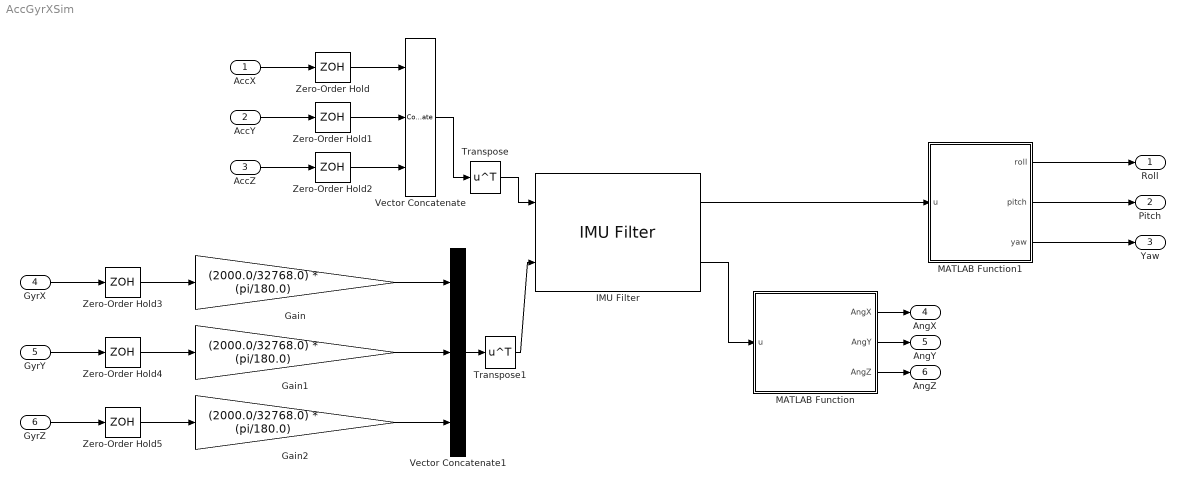
== matlab function AccGyrXSim/MATLAB Function ==
function [AngX,AngY,AngZ] = fcn(u)

y = u;
AngX = y(1);
AngY = y(2);
AngZ = y(3);

== matlab function AccGyrXSim/MATLAB Function1 ==
function [roll, pitch, yaw] = hquat2eul(u)

q2 = quaternion(u(:,1), u(:,2), u(:,3), u(:,4));
y = eulerd(q2, "ZYX", "frame");

yaw = y(3);
pitch = y(2);
roll = y(1)-45;

roll  = mod(roll  + 180, 360) - 180;
pitch = mod(pitch + 180, 360) - 180;
yaw   = mod(yaw   + 180, 360) - 180;

/*
 * File: AccGyrXSim.c
 *
 * Code generated for Simulink model 'AccGyrXSim'.
 *
 * Model version                  : 1.74
 * Simulink Coder version         : 25.2 (R2025b) 28-Jul-2025
 * C/C++ source code generated on : Mon Feb 23 16:50:48 2026
 *
 * Target selection: ert.tlc
 * Embedded hardware selection: ARM Compatible->ARM Cortex-M
 * Code generation objectives: Unspecified
 * Validation result: Not run
 */

#include "AccGyrXSim.h"
#include "AccGyrXSim_types.h"
#include "rtwtypes.h"
#include <math.h>
#include "AccGyrXSim_private.h"
#include "rt_nonfinite.h"
#include <string.h>
#include "rt_defines.h"

/* Block signals (default storage) */
B_AccGyrXSim_T AccGyrXSim_B;

/* Block states (default storage) */
DW_AccGyrXSim_T AccGyrXSim_DW;

/* External inputs (root inport signals with default storage) */
ExtU_AccGyrXSim_T AccGyrXSim_U;

/* External outputs (root outports fed by signals with default storage) */
ExtY_AccGyrXSim_T AccGyrXSim_Y;

/* Real-time model */
static RT_MODEL_AccGyrXSim_T AccGyrXSim_M_;
RT_MODEL_AccGyrXSim_T *const AccGyrXSim_M = &AccGyrXSim_M_;

/* Forward declaration for local functions */
static void AccGyrXSim_NED_ecompass(const real_T a[3], const real_T m[3], real_T
  R[9]);
static void AccGyrXSi_quaternion_quaternion(const real_T varargin_1[3], real_T
  *obj_a, real_T *obj_b, real_T *obj_c, real_T *obj_d);
static void AccGyrXSim_imufilter_stepImpl(fusion_internal_simulink_imuf_T *obj,
  const real_T accelIn[3], const real_T gyroIn[3], real_T orientOut[4], real_T
  angvel[3]);
static void AccGyrXSim_NED_ecompass(const real_T a[3], const real_T m[3], real_T
  R[9])
{
  real_T Reast[3];
  real_T R_0;
  int32_T i2;
  int32_T xpageoffset;
  boolean_T b[9];
  boolean_T y[3];
  boolean_T exitg1;
  boolean_T nanPageIdx;

  /* Start for MATLABSystem: '<Root>/IMU Filter' */
  Reast[0] = a[1] * m[2] - m[1] * a[2];
  Reast[1] = m[0] * a[2] - a[0] * m[2];
  Reast[2] = a[0] * m[1] - m[0] * a[1];
  R[6] = a[0];
  R[3] = Reast[0];

  /* Start for MATLABSystem: '<Root>/IMU Filter' */
  R[7] = a[1];
  R[4] = Reast[1];

  /* Start for MATLABSystem: '<Root>/IMU Filter' */
  R[8] = a[2];
  R[5] = Reast[2];

  /* Start for MATLABSystem: '<Root>/IMU Filter' */
  R[0] = Reast[1] * a[2] - a[1] * Reast[2];
  R[1] = a[0] * Reast[2] - Reast[0] * a[2];
  R[2] = Reast[0] * a[1] - a[0] * Reast[1];
  for (i2 = 0; i2 < 9; i2++) {
    R_0 = R[i2];
    AccGyrXSim_B.x[i2] = R_0 * R_0;
  }

  for (i2 = 0; i2 < 3; i2++) {
    xpageoffset = i2 * 3;

    /* Start for MATLABSystem: '<Root>/IMU Filter' */
    Reast[i2] = sqrt((AccGyrXSim_B.x[xpageoffset + 1] +
                      AccGyrXSim_B.x[xpageoffset]) + AccGyrXSim_B.x[xpageoffset
                     + 2]);
  }

  memcpy(&AccGyrXSim_B.x[0], &R[0], 9U * sizeof(real_T));
  for (i2 = 0; i2 < 3; i2++) {
    /* Start for MATLABSystem: '<Root>/IMU Filter' */
    R_0 = Reast[i2];
    R[3 * i2] = AccGyrXSim_B.x[3 * i2] / R_0;
    xpageoffset = 3 * i2 + 1;
    R[xpageoffset] = AccGyrXSim_B.x[xpageoffset] / R_0;
    xpageoffset = 3 * i2 + 2;
    R[xpageoffset] = AccGyrXSim_B.x[xpageoffset] / R_0;
  }

  for (i2 = 0; i2 < 9; i2++) {
    /* Start for MATLABSystem: '<Root>/IMU Filter' */
    b[i2] = rtIsNaN(R[i2]);
  }

  y[0] = false;
  y[1] = false;
  y[2] = false;
  i2 = 1;
  for (xpageoffset = 0; xpageoffset < 3; xpageoffset++) {
    int32_T i2_0;
    int32_T ix;

    /* Start for MATLABSystem: '<Root>/IMU Filter' */
    i2_0 = i2;
    ix = i2;

    /* Start for MATLABSystem: '<Root>/IMU Filter' */
    i2 += 3;
    exitg1 = false;
    while ((!exitg1) && (ix <= i2_0 + 2)) {
      if (b[ix - 1]) {
        y[xpageoffset] = true;
        exitg1 = true;
      } else {
        ix++;
      }
    }
  }

  nanPageIdx = false;
  i2 = 0;
  exitg1 = false;
  while ((!exitg1) && (i2 < 3)) {
    if (y[i2]) {
      nanPageIdx = true;
      exitg1 = true;
    } else {
      i2++;
    }
  }

  if (nanPageIdx) {
    memset(&R[0], 0, 9U * sizeof(real_T));
    R[0] = 1.0;
    R[4] = 1.0;
    R[8] = 1.0;
  }
}

static void AccGyrXSi_quaternion_quaternion(const real_T varargin_1[3], real_T
  *obj_a, real_T *obj_b, real_T *obj_c, real_T *obj_d)
{
  real_T st;
  real_T st_tmp;
  real_T theta;
  *obj_a = 1.0;
  *obj_b = 0.0;
  *obj_c = 0.0;
  *obj_d = 0.0;

  /* Start for MATLABSystem: '<Root>/IMU Filter' */
  theta = sqrt((varargin_1[0] * varargin_1[0] + varargin_1[1] * varargin_1[1]) +
               varargin_1[2] * varargin_1[2]);
  st_tmp = theta / 2.0;
  st = sin(st_tmp);
  if (theta != 0.0) {
    /* Start for MATLABSystem: '<Root>/IMU Filter' */
    *obj_a = cos(st_tmp);
    *obj_b = varargin_1[0] / theta * st;
    *obj_c = varargin_1[1] / theta * st;
    *obj_d = varargin_1[2] / theta * st;
  }
}

static void AccGyrXSim_imufilter_stepImpl(fusion_internal_simulink_imuf_T *obj,
  const real_T accelIn[3], const real_T gyroIn[3], real_T orientOut[4], real_T
  angvel[3])
{
  real_T psquared[4];
  real_T deltaAng[3];
  real_T a21;
  real_T deltaAng_idx_1;
  real_T deltaAng_idx_2;
  real_T e_c;
  real_T e_d;
  real_T invpa;
  real_T invpd;
  real_T maxval;
  real_T n;
  real_T pGyroOffsetIn_idx_0;
  real_T pGyroOffsetIn_idx_1;
  real_T pGyroOffsetIn_idx_2;
  real_T pa;
  real_T pd;
  real_T q_a;
  real_T y;
  real_T y_0;
  int32_T H_tmp;
  int32_T H_tmp_0;
  int32_T H_tmp_1;
  int32_T r1;
  int32_T r2;
  int32_T r3;
  int32_T rtemp;
  static const real_T tmp[3] = { 1.0, 0.0, 0.0 };

  static const int8_T tmp_0[9] = { 1, 0, 0, 0, 1, 0, 0, 0, 1 };

  boolean_T exitg1;

  /* Start for MATLABSystem: '<Root>/IMU Filter' */
  pGyroOffsetIn_idx_0 = obj->pGyroOffset[0];
  pGyroOffsetIn_idx_1 = obj->pGyroOffset[1];
  pGyroOffsetIn_idx_2 = obj->pGyroOffset[2];
  if (obj->pFirstTime) {
    AccGyrXSim_NED_ecompass(accelIn, tmp, AccGyrXSim_B.Rpost);
    pd = (AccGyrXSim_B.Rpost[0] + AccGyrXSim_B.Rpost[4]) + AccGyrXSim_B.Rpost[8];
    psquared[0] = (pd * 2.0 + 1.0) - pd;
    psquared[1] = (2.0 * AccGyrXSim_B.Rpost[0] + 1.0) - pd;
    psquared[2] = (2.0 * AccGyrXSim_B.Rpost[4] + 1.0) - pd;
    psquared[3] = (2.0 * AccGyrXSim_B.Rpost[8] + 1.0) - pd;
    if (!rtIsNaN(psquared[0])) {
      r2 = 1;
    } else {
      r2 = 0;
      r1 = 2;
      exitg1 = false;
      while ((!exitg1) && (r1 < 5)) {
        if (!rtIsNaN(psquared[r1 - 1])) {
          r2 = r1;
          exitg1 = true;
        } else {
          r1++;
        }
      }
    }

    if (r2 == 0) {
      pd = psquared[0];
      r2 = 1;
    } else {
      pd = psquared[r2 - 1];
      r3 = r2;
      for (r1 = r2 + 1; r1 < 5; r1++) {
        pa = psquared[r1 - 1];
        if (pd < pa) {
          pd = pa;
          r3 = r1;
        }
      }

      r2 = r3;
    }

    switch (r2) {
     case 1:
      pa = sqrt(pd);
      pd = 0.5 * pa;
      invpa = 0.5 / pa;
      pa = (AccGyrXSim_B.Rpost[7] - AccGyrXSim_B.Rpost[5]) * invpa;
      invpd = (AccGyrXSim_B.Rpost[2] - AccGyrXSim_B.Rpost[6]) * invpa;
      invpa *= AccGyrXSim_B.Rpost[3] - AccGyrXSim_B.Rpost[1];
      break;

     case 2:
      pd = sqrt(pd);
      pa = 0.5 * pd;
      invpa = 0.5 / pd;
      pd = (AccGyrXSim_B.Rpost[7] - AccGyrXSim_B.Rpost[5]) * invpa;
      invpd = (AccGyrXSim_B.Rpost[1] + AccGyrXSim_B.Rpost[3]) * invpa;
      invpa *= AccGyrXSim_B.Rpost[2] + AccGyrXSim_B.Rpost[6];
      break;

     case 3:
      pd = sqrt(pd);
      invpd = 0.5 * pd;
      invpa = 0.5 / pd;
      pd = (AccGyrXSim_B.Rpost[2] - AccGyrXSim_B.Rpost[6]) * invpa;
      pa = (AccGyrXSim_B.Rpost[1] + AccGyrXSim_B.Rpost[3]) * invpa;
      invpa *= AccGyrXSim_B.Rpost[5] + AccGyrXSim_B.Rpost[7];
      break;

     default:
      pd = sqrt(pd);
      invpa = 0.5 * pd;
      invpd = 0.5 / pd;
      pd = (AccGyrXSim_B.Rpost[3] - AccGyrXSim_B.Rpost[1]) * invpd;
      pa = (AccGyrXSim_B.Rpost[2] + AccGyrXSim_B.Rpost[6]) * invpd;
      invpd *= AccGyrXSim_B.Rpost[5] + AccGyrXSim_B.Rpost[7];
      break;
    }

    if (pd < 0.0) {
      pd = -pd;
      pa = -pa;
      invpd = -invpd;
      invpa = -invpa;
    }

    obj->pOrientPost.a = pd;
    obj->pOrientPost.b = pa;
    obj->pOrientPost.c = invpd;
    obj->pOrientPost.d = invpa;
  }

  deltaAng[0] = (gyroIn[0] - obj->pGyroOffset[0]) * obj->pSensorPeriod;
  deltaAng[1] = (gyroIn[1] - obj->pGyroOffset[1]) * obj->pSensorPeriod;
  deltaAng[2] = (gyroIn[2] - obj->pGyroOffset[2]) * obj->pSensorPeriod;
  AccGyrXSi_quaternion_quaternion(deltaAng, &n, &deltaAng_idx_1, &deltaAng_idx_2,
    &a21);

  /* Start for MATLABSystem: '<Root>/IMU Filter' */
  invpd = ((obj->pOrientPost.a * n - obj->pOrientPost.b * deltaAng_idx_1) -
           obj->pOrientPost.c * deltaAng_idx_2) - obj->pOrientPost.d * a21;
  invpa = ((obj->pOrientPost.a * deltaAng_idx_1 + obj->pOrientPost.b * n) +
           obj->pOrientPost.c * a21) - obj->pOrientPost.d * deltaAng_idx_2;
  e_c = ((obj->pOrientPost.a * deltaAng_idx_2 - obj->pOrientPost.b * a21) +
         obj->pOrientPost.c * n) + obj->pOrientPost.d * deltaAng_idx_1;
  e_d = ((obj->pOrientPost.a * a21 + obj->pOrientPost.b * deltaAng_idx_2) -
         obj->pOrientPost.c * deltaAng_idx_1) + obj->pOrientPost.d * n;
  if (((obj->pOrientPost.a * n - obj->pOrientPost.b * deltaAng_idx_1) -
       obj->pOrientPost.c * deltaAng_idx_2) - obj->pOrientPost.d * a21 < 0.0) {
    invpd = -invpd;
    invpa = -invpa;
    e_c = -e_c;
    e_d = -e_d;
  }

  n = sqrt(((invpd * invpd + invpa * invpa) + e_c * e_c) + e_d * e_d);
  q_a = invpd / n;
  pa = invpa / n;
  deltaAng_idx_1 = e_c / n;
  maxval = e_d / n;
  n = (pa * maxval * 2.0 - q_a * deltaAng_idx_1 * 2.0) * 9.81;
  pd = obj->LinearAccelerationDecayFactor * obj->pLinAccelPost[0];
  deltaAng_idx_1 = (deltaAng_idx_1 * maxval * 2.0 + q_a * pa * 2.0) * 9.81;
  pa = obj->LinearAccelerationDecayFactor * obj->pLinAccelPost[1];
  deltaAng_idx_2 = ((q_a * q_a * 2.0 - 1.0) + maxval * maxval * 2.0) * 9.81;
  q_a = obj->LinearAccelerationDecayFactor * obj->pLinAccelPost[2];
  memset(&AccGyrXSim_B.Rpost[0], 0, 9U * sizeof(real_T));

  /* Start for MATLABSystem: '<Root>/IMU Filter' */
  AccGyrXSim_B.Rpost[3] = deltaAng_idx_2;
  AccGyrXSim_B.Rpost[6] = -deltaAng_idx_1;
  AccGyrXSim_B.Rpost[7] = n;
  for (r1 = 0; r1 < 3; r1++) {
    AccGyrXSim_B.Rpost_c[3 * r1] = AccGyrXSim_B.Rpost[3 * r1];
    r2 = 3 * r1 + 1;
    AccGyrXSim_B.Rpost_c[r2] = AccGyrXSim_B.Rpost[r2] - AccGyrXSim_B.Rpost[r1 +
      3];
    r2 = 3 * r1 + 2;
    AccGyrXSim_B.Rpost_c[r2] = AccGyrXSim_B.Rpost[r2] - AccGyrXSim_B.Rpost[r1 +
      6];
  }

  for (r1 = 0; r1 < 9; r1++) {
    maxval = AccGyrXSim_B.Rpost_c[r1];
    AccGyrXSim_B.H[r1] = maxval;

    /* Start for MATLABSystem: '<Root>/IMU Filter' */
    AccGyrXSim_B.H[r1 + 9] = -maxval * obj->pKalmanPeriod;
    AccGyrXSim_B.H[r1 + 18] = tmp_0[r1];
    AccGyrXSim_B.y[3 * r1] = 0.0;
    AccGyrXSim_B.y[3 * r1 + 1] = 0.0;
    AccGyrXSim_B.y[3 * r1 + 2] = 0.0;
  }

  for (r1 = 0; r1 < 9; r1++) {
    a21 = AccGyrXSim_B.y[3 * r1];
    r3 = 3 * r1 + 1;
    y = AccGyrXSim_B.y[r3];
    rtemp = 3 * r1 + 2;
    y_0 = AccGyrXSim_B.y[rtemp];
    for (r2 = 0; r2 < 9; r2++) {
      /* Start for MATLABSystem: '<Root>/IMU Filter' */
      maxval = obj->pQw[9 * r1 + r2];
      a21 += AccGyrXSim_B.H[3 * r2] * maxval;
      y += AccGyrXSim_B.H[3 * r2 + 1] * maxval;
      y_0 += AccGyrXSim_B.H[3 * r2 + 2] * maxval;
    }

    AccGyrXSim_B.y[rtemp] = y_0;
    AccGyrXSim_B.y[r3] = y;
    AccGyrXSim_B.y[3 * r1] = a21;
  }

  /* Start for MATLABSystem: '<Root>/IMU Filter' */
  for (r1 = 0; r1 < 3; r1++) {
    maxval = 0.0;
    a21 = 0.0;
    y = 0.0;
    for (r2 = 0; r2 < 9; r2++) {
      y_0 = AccGyrXSim_B.H[3 * r2 + r1];
      AccGyrXSim_B.y_tmp[r2 + 9 * r1] = y_0;
      maxval += AccGyrXSim_B.y[3 * r2] * y_0;
      a21 += AccGyrXSim_B.y[3 * r2 + 1] * y_0;
      y += AccGyrXSim_B.y[3 * r2 + 2] * y_0;
    }

    AccGyrXSim_B.Rpost_c[3 * r1 + 2] = y;
    AccGyrXSim_B.Rpost_c[3 * r1 + 1] = a21;
    AccGyrXSim_B.Rpost_c[3 * r1] = maxval;
  }

  for (r1 = 0; r1 < 3; r1++) {
    /* Start for MATLABSystem: '<Root>/IMU Filter' */
    AccGyrXSim_B.Rpost[3 * r1] = AccGyrXSim_B.Rpost_c[r1] + obj->pQv[r1];
    AccGyrXSim_B.Rpost[3 * r1 + 1] = AccGyrXSim_B.Rpost_c[r1 + 3] + obj->pQv[r1
      + 3];
    AccGyrXSim_B.Rpost[3 * r1 + 2] = AccGyrXSim_B.Rpost_c[r1 + 6] + obj->pQv[r1
      + 6];
    memset(&AccGyrXSim_B.y_m[r1 * 9], 0, 9U * sizeof(real_T));
    for (r2 = 0; r2 < 9; r2++) {
      maxval = AccGyrXSim_B.y_tmp[9 * r1 + r2];
      for (rtemp = 0; rtemp < 9; rtemp++) {
        r3 = 9 * r1 + rtemp;

        /* Start for MATLABSystem: '<Root>/IMU Filter' */
        AccGyrXSim_B.y_m[r3] += obj->pQw[9 * r2 + rtemp] * maxval;
      }
    }
  }

  r1 = 0;

  /* Start for MATLABSystem: '<Root>/IMU Filter' */
  r2 = 1;
  r3 = 2;
  maxval = fabs(AccGyrXSim_B.Rpost[0]);
  a21 = fabs(AccGyrXSim_B.Rpost[1]);
  if (a21 > maxval) {
    maxval = a21;
    r1 = 1;

    /* Start for MATLABSystem: '<Root>/IMU Filter' */
    r2 = 0;
  }

  /* Start for MATLABSystem: '<Root>/IMU Filter' */
  if (fabs(AccGyrXSim_B.Rpost[2]) > maxval) {
    r1 = 2;
    r2 = 1;
    r3 = 0;
  }

  AccGyrXSim_B.Rpost[r2] /= AccGyrXSim_B.Rpost[r1];
  AccGyrXSim_B.Rpost[r3] /= AccGyrXSim_B.Rpost[r1];
  AccGyrXSim_B.Rpost[r2 + 3] -= AccGyrXSim_B.Rpost[r1 + 3] *
    AccGyrXSim_B.Rpost[r2];
  AccGyrXSim_B.Rpost[r3 + 3] -= AccGyrXSim_B.Rpost[r1 + 3] *
    AccGyrXSim_B.Rpost[r3];
  AccGyrXSim_B.Rpost[r2 + 6] -= AccGyrXSim_B.Rpost[r1 + 6] *
    AccGyrXSim_B.Rpost[r2];
  AccGyrXSim_B.Rpost[r3 + 6] -= AccGyrXSim_B.Rpost[r1 + 6] *
    AccGyrXSim_B.Rpost[r3];

  /* Start for MATLABSystem: '<Root>/IMU Filter' */
  if (fabs(AccGyrXSim_B.Rpost[r3 + 3]) > fabs(AccGyrXSim_B.Rpost[r2 + 3])) {
    rtemp = r2 + 1;
    r2 = r3;
    r3 = rtemp - 1;
  }

  AccGyrXSim_B.Rpost[r3 + 3] /= AccGyrXSim_B.Rpost[r2 + 3];
  AccGyrXSim_B.Rpost[r3 + 6] -= AccGyrXSim_B.Rpost[r3 + 3] *
    AccGyrXSim_B.Rpost[r2 + 6];
  for (rtemp = 0; rtemp < 9; rtemp++) {
    /* Start for MATLABSystem: '<Root>/IMU Filter' */
    H_tmp = 9 * r1 + rtemp;
    AccGyrXSim_B.H[H_tmp] = AccGyrXSim_B.y_m[rtemp] / AccGyrXSim_B.Rpost[r1];
    H_tmp_0 = 9 * r2 + rtemp;
    AccGyrXSim_B.H[H_tmp_0] = AccGyrXSim_B.y_m[rtemp + 9] -
      AccGyrXSim_B.Rpost[r1 + 3] * AccGyrXSim_B.H[H_tmp];
    H_tmp_1 = 9 * r3 + rtemp;
    AccGyrXSim_B.H[H_tmp_1] = AccGyrXSim_B.y_m[rtemp + 18] -
      AccGyrXSim_B.Rpost[r1 + 6] * AccGyrXSim_B.H[H_tmp];
    AccGyrXSim_B.H[H_tmp_0] /= AccGyrXSim_B.Rpost[r2 + 3];
    AccGyrXSim_B.H[H_tmp_1] -= AccGyrXSim_B.Rpost[r2 + 6] *
      AccGyrXSim_B.H[H_tmp_0];
    AccGyrXSim_B.H[H_tmp_1] /= AccGyrXSim_B.Rpost[r3 + 6];
    AccGyrXSim_B.H[H_tmp_0] -= AccGyrXSim_B.Rpost[r3 + 3] *
      AccGyrXSim_B.H[H_tmp_1];
    AccGyrXSim_B.H[H_tmp] -= AccGyrXSim_B.H[H_tmp_1] * AccGyrXSim_B.Rpost[r3];
    AccGyrXSim_B.H[H_tmp] -= AccGyrXSim_B.H[H_tmp_0] * AccGyrXSim_B.Rpost[r2];
  }

  /* Start for MATLABSystem: '<Root>/IMU Filter' */
  deltaAng[0] = (accelIn[0] + pd) - n;
  deltaAng[1] = (accelIn[1] + pa) - deltaAng_idx_1;
  deltaAng[2] = (accelIn[2] + q_a) - deltaAng_idx_2;
  memset(&AccGyrXSim_B.Rpost[0], 0, 9U * sizeof(real_T));
  for (r1 = 0; r1 < 3; r1++) {
    maxval = deltaAng[r1];
    for (r2 = 0; r2 < 9; r2++) {
      /* Start for MATLABSystem: '<Root>/IMU Filter' */
      AccGyrXSim_B.Rpost[r2] += AccGyrXSim_B.H[9 * r1 + r2] * maxval;
    }
  }

  /* Start for MATLABSystem: '<Root>/IMU Filter' */
  AccGyrXSi_quaternion_quaternion(&AccGyrXSim_B.Rpost[0], &n, &deltaAng_idx_1,
    &deltaAng_idx_2, &a21);
  maxval = ((invpd * n - invpa * -deltaAng_idx_1) - e_c * -deltaAng_idx_2) - e_d
    * -a21;
  obj->pOrientPost.a = maxval;
  obj->pOrientPost.b = ((invpd * -deltaAng_idx_1 + invpa * n) + e_c * -a21) -
    e_d * -deltaAng_idx_2;
  obj->pOrientPost.c = ((invpd * -deltaAng_idx_2 - invpa * -a21) + e_c * n) +
    e_d * -deltaAng_idx_1;
  obj->pOrientPost.d = ((invpd * -a21 + invpa * -deltaAng_idx_2) - e_c *
                        -deltaAng_idx_1) + e_d * n;
  if (maxval < 0.0) {
    obj->pOrientPost.a = -obj->pOrientPost.a;
    obj->pOrientPost.b = -obj->pOrientPost.b;
    obj->pOrientPost.c = -obj->pOrientPost.c;
    obj->pOrientPost.d = -obj->pOrientPost.d;
  }

  /* Start for MATLABSystem: '<Root>/IMU Filter' */
  n = sqrt(((obj->pOrientPost.a * obj->pOrientPost.a + obj->pOrientPost.b *
             obj->pOrientPost.b) + obj->pOrientPost.c * obj->pOrientPost.c) +
           obj->pOrientPost.d * obj->pOrientPost.d);
  obj->pOrientPost.a /= n;
  obj->pOrientPost.b /= n;
  obj->pOrientPost.c /= n;
  obj->pOrientPost.d /= n;
  for (r1 = 0; r1 < 9; r1++) {
    /* Start for MATLABSystem: '<Root>/IMU Filter' */
    invpd = AccGyrXSim_B.H[r1 + 9];
    invpa = AccGyrXSim_B.H[r1];
    e_c = AccGyrXSim_B.H[r1 + 18];
    for (r2 = 0; r2 < 9; r2++) {
      /* Start for MATLABSystem: '<Root>/IMU Filter' */
      r3 = 9 * r2 + r1;
      AccGyrXSim_B.Ppost[r3] = obj->pQw[r3] - ((AccGyrXSim_B.y[3 * r2 + 1] *
        invpd + AccGyrXSim_B.y[3 * r2] * invpa) + AccGyrXSim_B.y[3 * r2 + 2] *
        e_c);
    }
  }

  memset(&obj->pQw[0], 0, 81U * sizeof(real_T));

  /* Start for MATLABSystem: '<Root>/IMU Filter' */
  a21 = obj->pKalmanPeriod * obj->pKalmanPeriod;
  invpd = obj->GyroscopeDriftNoise + obj->GyroscopeNoise;
  obj->pQw[0] = (AccGyrXSim_B.Ppost[30] + invpd) * a21 + AccGyrXSim_B.Ppost[0];
  obj->pQw[30] = AccGyrXSim_B.Ppost[30] + obj->GyroscopeDriftNoise;
  obj->pQw[10] = (AccGyrXSim_B.Ppost[40] + invpd) * a21 + AccGyrXSim_B.Ppost[10];
  obj->pQw[40] = AccGyrXSim_B.Ppost[40] + obj->GyroscopeDriftNoise;
  obj->pQw[20] = (AccGyrXSim_B.Ppost[50] + invpd) * a21 + AccGyrXSim_B.Ppost[20];
  obj->pQw[50] = AccGyrXSim_B.Ppost[50] + obj->GyroscopeDriftNoise;
  n = -obj->pKalmanPeriod * obj->pQw[30];
  deltaAng_idx_1 = -obj->pKalmanPeriod * obj->pQw[40];
  deltaAng_idx_2 = -obj->pKalmanPeriod * obj->pQw[50];
  a21 = obj->LinearAccelerationDecayFactor * obj->LinearAccelerationDecayFactor;
  obj->pFirstTime = false;
  obj->pQw[3] = n;
  obj->pQw[27] = n;

  /* Start for MATLABSystem: '<Root>/IMU Filter' */
  obj->pQw[60] = a21 * AccGyrXSim_B.Ppost[60] + obj->LinearAccelerationNoise;
  obj->pGyroOffset[0] -= AccGyrXSim_B.Rpost[3];
  obj->pLinAccelPost[0] = pd - AccGyrXSim_B.Rpost[6];
  angvel[0] = gyroIn[0] - pGyroOffsetIn_idx_0;
  obj->pQw[13] = deltaAng_idx_1;
  obj->pQw[37] = deltaAng_idx_1;

  /* Start for MATLABSystem: '<Root>/IMU Filter' */
  obj->pQw[70] = a21 * AccGyrXSim_B.Ppost[70] + obj->LinearAccelerationNoise;
  obj->pGyroOffset[1] -= AccGyrXSim_B.Rpost[4];
  obj->pLinAccelPost[1] = pa - AccGyrXSim_B.Rpost[7];
  angvel[1] = gyroIn[1] - pGyroOffsetIn_idx_1;
  obj->pQw[23] = deltaAng_idx_2;
  obj->pQw[47] = deltaAng_idx_2;

  /* Start for MATLABSystem: '<Root>/IMU Filter' */
  obj->pQw[80] = a21 * AccGyrXSim_B.Ppost[80] + obj->LinearAccelerationNoise;
  obj->pGyroOffset[2] -= AccGyrXSim_B.Rpost[5];
  obj->pLinAccelPost[2] = q_a - AccGyrXSim_B.Rpost[8];
  angvel[2] = gyroIn[2] - pGyroOffsetIn_idx_2;
  orientOut[0] = obj->pOrientPost.a;
  orientOut[1] = obj->pOrientPost.b;
  orientOut[2] = obj->pOrientPost.c;
  orientOut[3] = obj->pOrientPost.d;
}

real_T rt_atan2d_snf(real_T u0, real_T u1)
{
  real_T y;
  if (rtIsNaN(u0) || rtIsNaN(u1)) {
    y = (rtNaN);
  } else if (rtIsInf(u0) && rtIsInf(u1)) {
    int32_T tmp;
    int32_T tmp_0;
    if (u0 > 0.0) {
      tmp = 1;
    } else {
      tmp = -1;
    }

    if (u1 > 0.0) {
      tmp_0 = 1;
    } else {
      tmp_0 = -1;
    }

    y = atan2(tmp, tmp_0);
  } else if (u1 == 0.0) {
    if (u0 > 0.0) {
      y = RT_PI / 2.0;
    } else if (u0 < 0.0) {
      y = -(RT_PI / 2.0);
    } else {
      y = 0.0;
    }
  } else {
    y = atan2(u0, u1);
  }

  return y;
}

/* Model step function */
void AccGyrXSim_step(void)
{
  real_T tmp[4];
  real_T rtb_Transpose[3];
  real_T rtb_VectorConcatenate1[3];
  real_T tmp_0[3];
  real_T a_tmp;
  real_T b;
  real_T c;
  real_T f_idx_0;
  real_T n;
  real_T q_c;
  real_T q_d;
  int32_T i;
  int8_T b_I[9];

  /* Math: '<Root>/Transpose' incorporates:
   *  Inport: '<Root>/AccX'
   *  Inport: '<Root>/AccY'
   *  Inport: '<Root>/AccZ'
   */
  rtb_Transpose[0] = AccGyrXSim_U.AccX;
  rtb_Transpose[1] = AccGyrXSim_U.AccY;
  rtb_Transpose[2] = AccGyrXSim_U.AccZ;

  /* Gain: '<Root>/Gain' incorporates:
   *  Inport: '<Root>/GyrX'
   */
  rtb_VectorConcatenate1[0] = 0.0010652644360316954 * AccGyrXSim_U.GyrX;

  /* Gain: '<Root>/Gain1' incorporates:
   *  Inport: '<Root>/GyrY'
   */
  rtb_VectorConcatenate1[1] = 0.0010652644360316954 * AccGyrXSim_U.GyrY;

  /* Gain: '<Root>/Gain2' incorporates:
   *  Inport: '<Root>/GyrZ'
   */
  rtb_VectorConcatenate1[2] = 0.0010652644360316954 * AccGyrXSim_U.GyrZ;

  /* MATLABSystem: '<Root>/IMU Filter' incorporates:
   *  Math: '<Root>/Transpose'
   *  Math: '<Root>/Transpose1'
   */
  if (AccGyrXSim_DW.obj.AccelerometerNoise != 0.0001924722) {
    if (AccGyrXSim_DW.obj.isInitialized == 1) {
      AccGyrXSim_DW.obj.TunablePropsChanged = true;
    }

    AccGyrXSim_DW.obj.AccelerometerNoise = 0.0001924722;
  }

  if (AccGyrXSim_DW.obj.GyroscopeNoise != 9.1385E-5) {
    if (AccGyrXSim_DW.obj.isInitialized == 1) {
      AccGyrXSim_DW.obj.TunablePropsChanged = true;
    }

    AccGyrXSim_DW.obj.GyroscopeNoise = 9.1385E-5;
  }

  if (AccGyrXSim_DW.obj.GyroscopeDriftNoise != 3.0462E-13) {
    if (AccGyrXSim_DW.obj.isInitialized == 1) {
      AccGyrXSim_DW.obj.TunablePropsChanged = true;
    }

    AccGyrXSim_DW.obj.GyroscopeDriftNoise = 3.0462E-13;
  }

  if (AccGyrXSim_DW.obj.LinearAccelerationNoise != 0.0096236100000000012) {
    if (AccGyrXSim_DW.obj.isInitialized == 1) {
      AccGyrXSim_DW.obj.TunablePropsChanged = true;
    }

    AccGyrXSim_DW.obj.LinearAccelerationNoise = 0.0096236100000000012;
  }

  if (AccGyrXSim_DW.obj.LinearAccelerationDecayFactor != 0.5) {
    if (AccGyrXSim_DW.obj.isInitialized == 1) {
      AccGyrXSim_DW.obj.TunablePropsChanged = true;
    }

    AccGyrXSim_DW.obj.LinearAccelerationDecayFactor = 0.5;
  }

  if (AccGyrXSim_DW.obj.TunablePropsChanged) {
    AccGyrXSim_DW.obj.TunablePropsChanged = false;
    AccGyrXSim_DW.obj.pSensorPeriod = 0.02;
    AccGyrXSim_DW.obj.pKalmanPeriod = 0.02;
    for (i = 0; i < 9; i++) {
      b_I[i] = 0;
    }

    b_I[0] = 1;
    b_I[4] = 1;
    b_I[8] = 1;
    for (i = 0; i < 9; i++) {
      AccGyrXSim_DW.obj.pQv[i] = 0.0098161187540001232 * (real_T)b_I[i];
    }
  }

  AccGyrXSim_imufilter_stepImpl(&AccGyrXSim_DW.obj, rtb_Transpose,
    rtb_VectorConcatenate1, tmp, tmp_0);

  /* MATLAB Function: '<Root>/MATLAB Function1' incorporates:
   *  MATLABSystem: '<Root>/IMU Filter'
   */
  n = sqrt(((tmp[0] * tmp[0] + tmp[1] * tmp[1]) + tmp[2] * tmp[2]) + tmp[3] *
           tmp[3]);
  c = tmp[0] / n;
  b = tmp[1] / n;
  q_c = tmp[2] / n;
  q_d = tmp[3] / n;
  n = b * q_d * 2.0 - c * q_c * 2.0;
  if (n > 1.0) {
    n = 1.0;
  }

  f_idx_0 = n;
  if (n < -1.0) {
    f_idx_0 = -1.0;
  }

  if ((f_idx_0 < 0.0) && (fabs(f_idx_0 + 1.0) < 2.2204460492503131E-15)) {
    n = -2.0 * rt_atan2d_snf(b, c);
    c = 0.0;
    b = 1.5707963267948966;
  } else if ((f_idx_0 > 0.0) && (fabs(f_idx_0 - 1.0) < 2.2204460492503131E-15))
  {
    n = 2.0 * rt_atan2d_snf(b, c);
    c = 0.0;
    b = -1.5707963267948966;
  } else {
    a_tmp = c * c * 2.0 - 1.0;
    n = rt_atan2d_snf(c * q_d * 2.0 + b * q_c * 2.0, b * b * 2.0 + a_tmp);
    c = rt_atan2d_snf(c * b * 2.0 + q_c * q_d * 2.0, q_d * q_d * 2.0 + a_tmp);
    b = -asin(f_idx_0);
  }

  rtb_VectorConcatenate1[0] = 57.295779513082323 * n;
  rtb_VectorConcatenate1[1] = 57.295779513082323 * b;
  rtb_VectorConcatenate1[2] = 57.295779513082323 * c;
  if (rtIsNaN((rtb_VectorConcatenate1[0] - 45.0) + 180.0)) {
    q_c = (rtNaN);
  } else if (rtIsInf((rtb_VectorConcatenate1[0] - 45.0) + 180.0)) {
    q_c = (rtNaN);
  } else {
    q_c = fmod((rtb_VectorConcatenate1[0] - 45.0) + 180.0, 360.0);
    if (q_c == 0.0) {
      q_c = 0.0;
    } else if (q_c < 0.0) {
      q_c += 360.0;
    }
  }

  if (rtIsNaN(rtb_VectorConcatenate1[1] + 180.0)) {
    b = (rtNaN);
  } else if (rtIsInf(rtb_VectorConcatenate1[1] + 180.0)) {
    b = (rtNaN);
  } else {
    b = fmod(rtb_VectorConcatenate1[1] + 180.0, 360.0);
    if (b == 0.0) {
      b = 0.0;
    } else if (b < 0.0) {
      b += 360.0;
    }
  }

  if (rtIsNaN(rtb_VectorConcatenate1[2] + 180.0)) {
    c = (rtNaN);
  } else if (rtIsInf(rtb_VectorConcatenate1[2] + 180.0)) {
    c = (rtNaN);
  } else {
    c = fmod(rtb_VectorConcatenate1[2] + 180.0, 360.0);
    if (c == 0.0) {
      c = 0.0;
    } else if (c < 0.0) {
      c += 360.0;
    }
  }

  /* Outport: '<Root>/Roll' incorporates:
   *  MATLAB Function: '<Root>/MATLAB Function1'
   */
  AccGyrXSim_Y.Roll = q_c - 180.0;

  /* Outport: '<Root>/Pitch' incorporates:
   *  MATLAB Function: '<Root>/MATLAB Function1'
   */
  AccGyrXSim_Y.Pitch = b - 180.0;

  /* Outport: '<Root>/Yaw' incorporates:
   *  MATLAB Function: '<Root>/MATLAB Function1'
   */
  AccGyrXSim_Y.Yaw = c - 180.0;

  /* Outport: '<Root>/AngX' incorporates:
   *  MATLAB Function: '<Root>/MATLAB Function'
   *  MATLABSystem: '<Root>/IMU Filter'
   */
  AccGyrXSim_Y.AngX = tmp_0[0];

  /* Outport: '<Root>/AngY' incorporates:
   *  MATLAB Function: '<Root>/MATLAB Function'
   *  MATLABSystem: '<Root>/IMU Filter'
   */
  AccGyrXSim_Y.AngY = tmp_0[1];

  /* Outport: '<Root>/AngZ' incorporates:
   *  MATLAB Function: '<Root>/MATLAB Function'
   *  MATLABSystem: '<Root>/IMU Filter'
   */
  AccGyrXSim_Y.AngZ = tmp_0[2];
}
